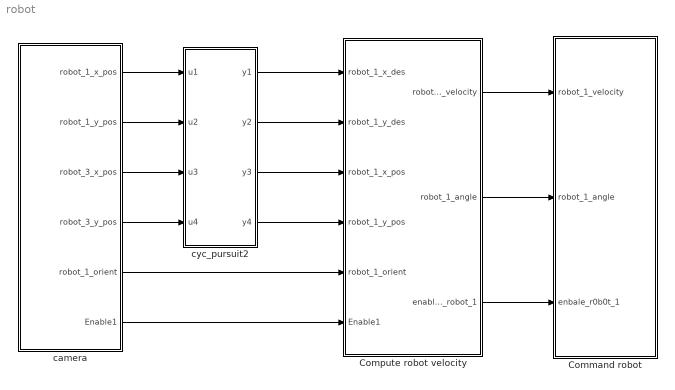
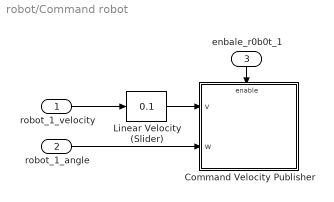
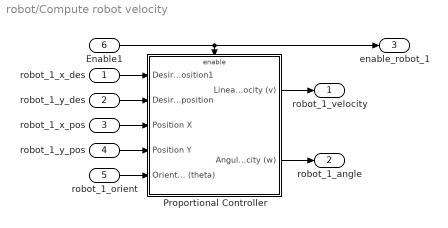
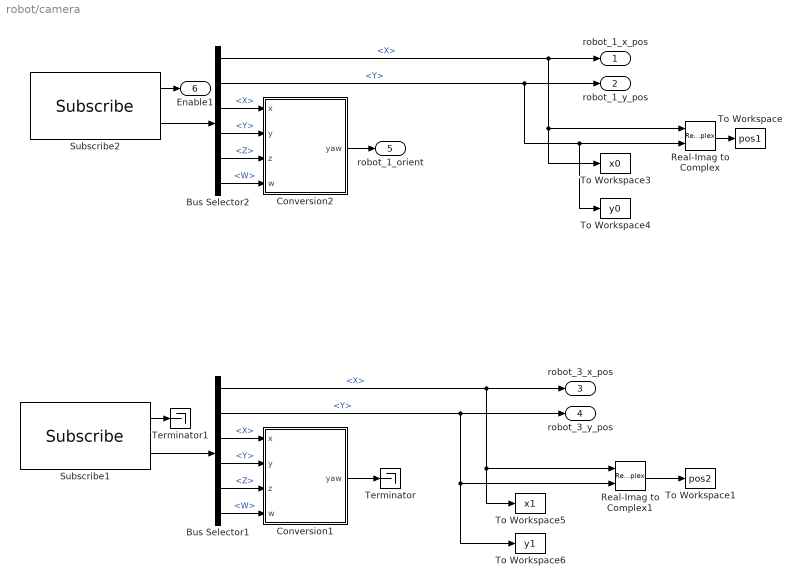
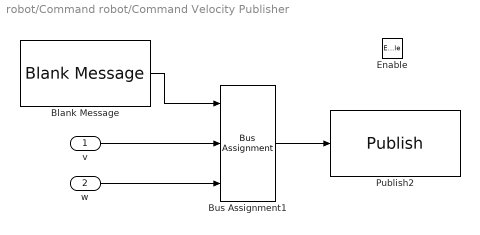
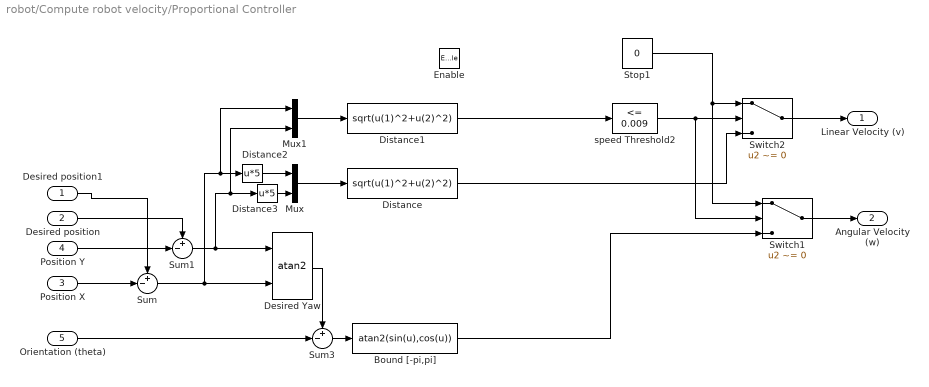
== matlab function robot/cyc_pursuit2 ==
function [y1, y2, y3, y4] = fcn(u1, u2, u3, u4)
%#codegen

y1 = ((1-0.2)*u1+(u3*0.2)-(1.2135*0.2));
y2 = ((1-0.2)*u2+(0.2*u4)+(0.8817*0.2));
y3=u1;
y4=u2;




%         y1 = ((1-0.2)*u1+(u3*0.2)+(1.5451*0.2));
%         y2 = ((1-0.2)*u2+(0.2*u4)+(4.7553*0.2));
%         y3 = ((1-0.2)*u3+(u5*0.2)-(4.0451*0.2));
%         y4 = ((1-0.2)*u4+(u6*0.2)+(2.9389*0.2));
%         y5 = ((1-0.2)*u5+(u7*0.2)-(4.0451*0.2));
%         y6 = ((1-0.2)*u6+(u8*0.2)-(2.9389*0.2));
%         y7 = ((1-0.2)*u7+(u9*0.2)+(1.5451*0.2));
%         y8 = ((1-0.2)*u8+(u10*0.2)-(4.7553*0.2));
%         y9 = ((1-0.2)*u9+(u1*0.2)+(5*0.2));
%         y10 = ((1-0.2)*u10+(u2*0.2)+(0*0.2));

== matlab function robot/camera/Conversion1 ==
function yaw  = quat2eul(x,y,z,w)
%#codegen

% Convert the quaternion to a yaw angle (zyx euler angle)
eul = quat2eul([w,x,y,z]);
yaw = eul(1);

end

== matlab function robot/camera/Conversion2 ==
function yaw  = quat2eul(x,y,z,w)
%#codegen

% Convert the quaternion to a yaw angle (zyx euler angle)
eul = quat2eul([w,x,y,z]);
yaw = eul(1);

end

//
// Academic License - for use in teaching, academic research, and meeting
// course requirements at degree granting institutions only.  Not for
// government, commercial, or other organizational use.
//
// File: robot.cpp
//
// Code generated for Simulink model 'robot'.
//
// Model version                  : 1.15
// Simulink Coder version         : 8.11 (R2016b) 25-Aug-2016
// C/C++ source code generated on : Fri Dec 30 17:27:04 2016
//
// Target selection: ert.tlc
// Embedded hardware selection: Generic->Unspecified (assume 32-bit Generic)
// Code generation objectives: Unspecified
// Validation result: Not run
//
#include "robot.h"
#include "robot_private.h"
#define robot_MessageQueueLen          (105)
#define robot_MessageQueueLen_h        (1)

real_T rt_atan2d_snf(real_T u0, real_T u1)
{
  real_T y;
  int32_T u0_0;
  int32_T u1_0;
  if (rtIsNaN(u0) || rtIsNaN(u1)) {
    y = (rtNaN);
  } else if (rtIsInf(u0) && rtIsInf(u1)) {
    if (u0 > 0.0) {
      u0_0 = 1;
    } else {
      u0_0 = -1;
    }

    if (u1 > 0.0) {
      u1_0 = 1;
    } else {
      u1_0 = -1;
    }

    y = atan2((real_T)u0_0, (real_T)u1_0);
  } else if (u1 == 0.0) {
    if (u0 > 0.0) {
      y = RT_PI / 2.0;
    } else if (u0 < 0.0) {
      y = -(RT_PI / 2.0);
    } else {
      y = 0.0;
    }
  } else {
    y = atan2(u0, u1);
  }

  return y;
}

//
// Output and update for atomic system:
//    '<S3>/Conversion1'
//    '<S3>/Conversion2'
//
void robot_Conversion1(real_T rtu_x, real_T rtu_y, real_T rtu_z, real_T rtu_w,
  B_Conversion1_robot_T *localB)
{
  real_T b_y;
  real_T q_idx_0;
  real_T q_idx_1;
  real_T q_idx_2;

  //  Convert the quaternion to a yaw angle (zyx euler angle)
  // MATLAB Function 'camera/Conversion1': '<S11>:1'
  // '<S11>:1:5' eul = quat2eul([w,x,y,z]);
  b_y = 1.0 / sqrt(((rtu_w * rtu_w + rtu_x * rtu_x) + rtu_y * rtu_y) + rtu_z *
                   rtu_z);
  q_idx_0 = rtu_w * b_y;
  q_idx_1 = rtu_x * b_y;
  q_idx_2 = rtu_y * b_y;
  b_y *= rtu_z;

  // '<S11>:1:6' yaw = eul(1);
  localB->yaw = rt_atan2d_snf((q_idx_1 * q_idx_2 + q_idx_0 * b_y) * 2.0,
    ((q_idx_0 * q_idx_0 + q_idx_1 * q_idx_1) - q_idx_2 * q_idx_2) - b_y * b_y);
}

real_T rt_powd_snf(real_T u0, real_T u1)
{
  real_T y;
  real_T tmp;
  real_T tmp_0;
  if (rtIsNaN(u0) || rtIsNaN(u1)) {
    y = (rtNaN);
  } else {
    tmp = fabs(u0);
    tmp_0 = fabs(u1);
    if (rtIsInf(u1)) {
      if (tmp == 1.0) {
        y = (rtNaN);
      } else if (tmp > 1.0) {
        if (u1 > 0.0) {
          y = (rtInf);
        } else {
          y = 0.0;
        }
      } else if (u1 > 0.0) {
        y = 0.0;
      } else {
        y = (rtInf);
      }
    } else if (tmp_0 == 0.0) {
      y = 1.0;
    } else if (tmp_0 == 1.0) {
      if (u1 > 0.0) {
        y = u0;
      } else {
        y = 1.0 / u0;
      }
    } else if (u1 == 2.0) {
      y = u0 * u0;
    } else if ((u1 == 0.5) && (u0 >= 0.0)) {
      y = sqrt(u0);
    } else if ((u0 < 0.0) && (u1 > floor(u1))) {
      y = (rtNaN);
    } else {
      y = pow(u0, u1);
    }
  }

  return y;
}

// Model step function
void robot_0ModelClass::step()
{
  boolean_T varargout_1;
  boolean_T varargout_1_0;

  // Outputs for Atomic SubSystem: '<S3>/Subscribe2'
  // Start for MATLABSystem: '<S14>/SourceBlock' incorporates:
  //   Inport: '<S16>/In1'
  //   MATLABSystem: '<S14>/SourceBlock'

  varargout_1 = Sub_robot_11.getLatestMessage(&robot_B.varargout_2);

  // Outputs for Enabled SubSystem: '<S14>/Enabled Subsystem' incorporates:
  //   EnablePort: '<S16>/Enable'

  if (varargout_1) {
    robot_B.In1 = robot_B.varargout_2;
  }

  // End of Outputs for SubSystem: '<S14>/Enabled Subsystem'
  // End of Outputs for SubSystem: '<S3>/Subscribe2'

  // Outputs for Atomic SubSystem: '<S3>/Subscribe1'
  // Start for MATLABSystem: '<S13>/SourceBlock' incorporates:
  //   Inport: '<S15>/In1'
  //   MATLABSystem: '<S13>/SourceBlock'

  varargout_1_0 = Sub_robot_10.getLatestMessage(&robot_B.varargout_2);

  // Outputs for Enabled SubSystem: '<S13>/Enabled Subsystem' incorporates:
  //   EnablePort: '<S15>/Enable'

  if (varargout_1_0) {
    robot_B.In1_d = robot_B.varargout_2;
  }

  // End of Start for MATLABSystem: '<S13>/SourceBlock'
  // End of Outputs for SubSystem: '<S13>/Enabled Subsystem'
  // End of Outputs for SubSystem: '<S3>/Subscribe1'

  // MATLAB Function: '<S3>/Conversion2'
  // MATLAB Function 'cyc_pursuit2': '<S4>:1'
  // '<S4>:1:4' y1 = ((1-0.2)*u1+(u3*0.2)-(1.2135*0.2));
  // '<S4>:1:5' y2 = ((1-0.2)*u2+(0.2*u4)-(0.8817*0.2));
  // '<S4>:1:6' y3=u1;
  // '<S4>:1:7' y4=u2;
  robot_Conversion1(robot_B.In1.Pose.Orientation.X,
                    robot_B.In1.Pose.Orientation.Y,
                    robot_B.In1.Pose.Orientation.Z,
                    robot_B.In1.Pose.Orientation.W, &robot_B.sf_Conversion2);

  // Outputs for Enabled SubSystem: '<S1>/Command Velocity Publisher' incorporates:
  //   EnablePort: '<S5>/Enable'

  // Outputs for Enabled SubSystem: '<S2>/Proportional Controller' incorporates:
  //   EnablePort: '<S9>/Enable'

  // Outputs for Atomic SubSystem: '<S3>/Subscribe2'
  // Start for MATLABSystem: '<S14>/SourceBlock' incorporates:
  //   MATLABSystem: '<S14>/SourceBlock'

  if (varargout_1) {
    // Sum: '<S9>/Sum1' incorporates:
    //   MATLAB Function: '<Root>/cyc_pursuit2'
    //   SignalConversion: '<S3>/SigConversion_InsertedFor_Bus Selector1_at_outport_1'
    //   SignalConversion: '<S3>/SigConversion_InsertedFor_Bus Selector2_at_outport_1'

    robot_B.Sum1 = ((0.8 * robot_B.In1.Pose.Position.Y + 0.2 *
                     robot_B.In1_d.Pose.Position.Y) - 0.17634000000000002) -
      robot_B.In1.Pose.Position.Y;

    // Sum: '<S9>/Sum' incorporates:
    //   MATLAB Function: '<Root>/cyc_pursuit2'
    //   SignalConversion: '<S3>/SigConversion_InsertedFor_Bus Selector1_at_outport_0'
    //   SignalConversion: '<S3>/SigConversion_InsertedFor_Bus Selector2_at_outport_0'

    robot_B.Sum = ((0.8 * robot_B.In1.Pose.Position.X +
                    robot_B.In1_d.Pose.Position.X * 0.2) - 0.24270000000000003)
      - robot_B.In1.Pose.Position.X;

    // Fcn: '<S9>/Distance1'
    robot_B.Sum3 = rt_powd_snf(robot_B.Sum, 2.0) + rt_powd_snf(robot_B.Sum1, 2.0);
    if (robot_B.Sum3 < 0.0) {
      robot_B.Sum3 = -sqrt(-robot_B.Sum3);
    } else {
      robot_B.Sum3 = sqrt(robot_B.Sum3);
    }

    // End of Fcn: '<S9>/Distance1'

    // Switch: '<S9>/Switch1' incorporates:
    //   Constant: '<S10>/Constant'
    //   Constant: '<S9>/Stop1'
    //   Fcn: '<S9>/Bound [-pi,pi]'
    //   RelationalOperator: '<S10>/Compare'
    //   Switch: '<S9>/Switch2'

    if (robot_B.Sum3 <= robot_P.speedThreshold2_const) {
      robot_B.Switch1 = robot_P.Stop1_Value;
      robot_B.Sum1 = robot_P.Stop1_Value;
    } else {
      // Sum: '<S9>/Sum3' incorporates:
      //   Trigonometry: '<S9>/Desired Yaw'

      robot_B.Sum3 = rt_atan2d_snf(robot_B.Sum1, robot_B.Sum) -
        robot_B.sf_Conversion2.yaw;
      robot_B.Switch1 = rt_atan2d_snf(sin(robot_B.Sum3), cos(robot_B.Sum3));

      // Fcn: '<S9>/Distance3' incorporates:
      //   Fcn: '<S9>/Bound [-pi,pi]'

      robot_B.Sum1 *= 5.0;

      // Fcn: '<S9>/Distance2'
      robot_B.Sum *= 5.0;

      // Fcn: '<S9>/Distance'
      robot_B.Sum3 = rt_powd_snf(robot_B.Sum, 2.0) + rt_powd_snf(robot_B.Sum1,
        2.0);
      if (robot_B.Sum3 < 0.0) {
        robot_B.Sum1 = -sqrt(-robot_B.Sum3);
      } else {
        robot_B.Sum1 = sqrt(robot_B.Sum3);
      }

      // End of Fcn: '<S9>/Distance'
    }

    // End of Switch: '<S9>/Switch1'

    // BusAssignment: '<S5>/Bus Assignment1' incorporates:
    //   Constant: '<S7>/Constant'
    //   Gain: '<S6>/Slider Gain'

    robot_B.BusAssignment1 = robot_P.Constant_Value_p;
    robot_B.BusAssignment1.Linear.X = robot_P.LinearVelocitySlider_gain *
      robot_B.Sum1;
    robot_B.BusAssignment1.Angular.Z = robot_B.Switch1;

    // Outputs for Atomic SubSystem: '<S5>/Publish2'
    // Start for MATLABSystem: '<S8>/SinkBlock' incorporates:
    //   MATLABSystem: '<S8>/SinkBlock'

    Pub_robot_75.publish(&robot_B.BusAssignment1);

    // End of Outputs for SubSystem: '<S5>/Publish2'
  }

  // End of Outputs for SubSystem: '<S3>/Subscribe2'
  // End of Outputs for SubSystem: '<S2>/Proportional Controller'
  // End of Outputs for SubSystem: '<S1>/Command Velocity Publisher'

  // MATLAB Function: '<S3>/Conversion1'
  robot_Conversion1(robot_B.In1_d.Pose.Orientation.X,
                    robot_B.In1_d.Pose.Orientation.Y,
                    robot_B.In1_d.Pose.Orientation.Z,
                    robot_B.In1_d.Pose.Orientation.W, &robot_B.sf_Conversion1);
}
